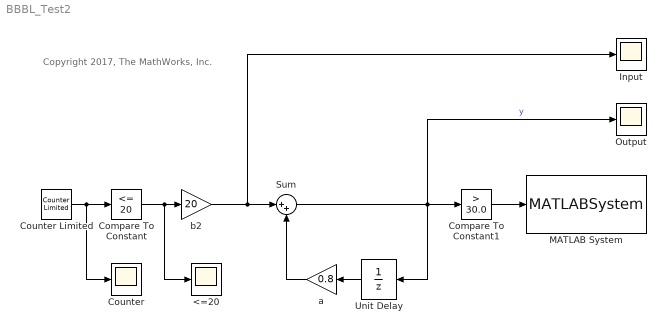
/*
 * Academic License - for use in teaching, academic research, and meeting
 * course requirements at degree granting institutions only.  Not for
 * government, commercial, or other organizational use.
 *
 * File: BBBL_Test2.c
 *
 * Code generated for Simulink model 'BBBL_Test2'.
 *
 * Model version                  : 1.85
 * Simulink Coder version         : 8.12 (R2017a) 16-Feb-2017
 * C/C++ source code generated on : Tue Jun 06 20:44:06 2017
 *
 * Target selection: ert.tlc
 * Embedded hardware selection: ARM Compatible->ARM Cortex
 * Code generation objectives: Unspecified
 * Validation result: Not run
 */

#include "BBBL_Test2.h"
#include "BBBL_Test2_private.h"
#include "BBBL_Test2_dt.h"
#define BBBL_Test2_rc_led_t            (1.0)

/* Block signals (auto storage) */
B_BBBL_Test2_T BBBL_Test2_B;

/* Block states (auto storage) */
DW_BBBL_Test2_T BBBL_Test2_DW;

/* Real-time model */
RT_MODEL_BBBL_Test2_T BBBL_Test2_M_;
RT_MODEL_BBBL_Test2_T *const BBBL_Test2_M = &BBBL_Test2_M_;

/* Model step function */
void BBBL_Test2_step(void)
{
  uint8_T rtb_FixPtSum1;

  /* UnitDelay: '<S3>/Output' */
  BBBL_Test2_B.Output = BBBL_Test2_DW.Output_DSTATE;

  /* RelationalOperator: '<S1>/Compare' incorporates:
   *  Constant: '<S1>/Constant'
   */
  BBBL_Test2_B.Compare = (uint8_T)(BBBL_Test2_B.Output <=
    BBBL_Test2_P.CompareToConstant_const);

  /* Gain: '<Root>/b2' */
  BBBL_Test2_B.b2 = BBBL_Test2_P.b2_Gain * (real_T)BBBL_Test2_B.Compare;

  /* Sum: '<Root>/Sum' incorporates:
   *  Gain: '<Root>/a'
   *  UnitDelay: '<Root>/Unit Delay'
   */
  BBBL_Test2_B.y = BBBL_Test2_P.a_Gain * BBBL_Test2_B.y + BBBL_Test2_B.b2;

  /* Start for MATLABSystem: '<Root>/MATLAB System' incorporates:
   *  Constant: '<S2>/Constant'
   *  MATLABSystem: '<Root>/MATLAB System'
   *  RelationalOperator: '<S2>/Compare'
   */
  rc_set_led(BBBL_Test2_rc_led_t, (uint8_T)(BBBL_Test2_B.y >
              BBBL_Test2_P.CompareToConstant1_const));

  /* Sum: '<S4>/FixPt Sum1' incorporates:
   *  Constant: '<S4>/FixPt Constant'
   */
  rtb_FixPtSum1 = (uint8_T)((uint32_T)BBBL_Test2_B.Output +
    BBBL_Test2_P.FixPtConstant_Value);

  /* Switch: '<S5>/FixPt Switch' */
  if (rtb_FixPtSum1 > BBBL_Test2_P.CounterLimited_uplimit) {
    /* Update for UnitDelay: '<S3>/Output' incorporates:
     *  Constant: '<S5>/Constant'
     */
    BBBL_Test2_DW.Output_DSTATE = BBBL_Test2_P.Constant_Value;
  } else {
    /* Update for UnitDelay: '<S3>/Output' */
    BBBL_Test2_DW.Output_DSTATE = rtb_FixPtSum1;
  }

  /* End of Switch: '<S5>/FixPt Switch' */

  /* External mode */
  rtExtModeUploadCheckTrigger(1);

  {                                    /* Sample time: [0.1s, 0.0s] */
    rtExtModeUpload(0, BBBL_Test2_M->Timing.taskTime0);
  }

  /* signal main to stop simulation */
  {                                    /* Sample time: [0.1s, 0.0s] */
    if ((rtmGetTFinal(BBBL_Test2_M)!=-1) &&
        !((rtmGetTFinal(BBBL_Test2_M)-BBBL_Test2_M->Timing.taskTime0) >
          BBBL_Test2_M->Timing.taskTime0 * (DBL_EPSILON))) {
      rtmSetErrorStatus(BBBL_Test2_M, "Simulation finished");
    }

    if (rtmGetStopRequested(BBBL_Test2_M)) {
      rtmSetErrorStatus(BBBL_Test2_M, "Simulation finished");
    }
  }

  /* Update absolute time for base rate */
  /* The "clockTick0" counts the number of times the code of this task has
   * been executed. The absolute time is the multiplication of "clockTick0"
   * and "Timing.stepSize0". Size of "clockTick0" ensures timer will not
   * overflow during the application lifespan selected.
   */
  BBBL_Test2_M->Timing.taskTime0 =
    (++BBBL_Test2_M->Timing.clockTick0) * BBBL_Test2_M->Timing.stepSize0;
}
